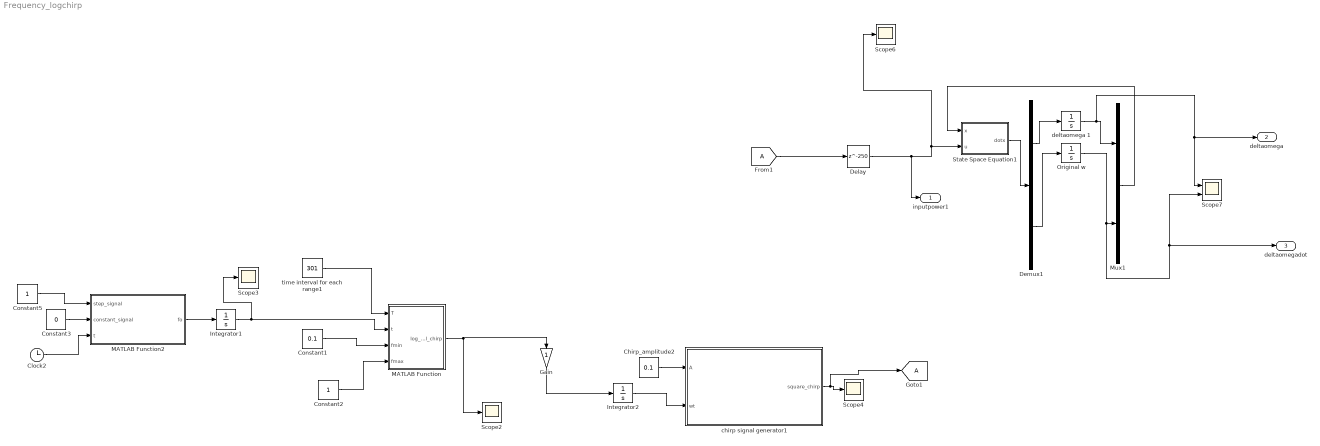
== matlab function Frequency_logchirp/MATLAB Function ==
function log_signal_chirp = fcn(T,t, fmin, fmax)
k = floor(t/T);
f0 = fmin;
f1 = fmax;
lambda1 = 1/T * log10(f1 / f0);

log_signal_chirp = f0*(10^(lambda1*(t-k*T)));

== matlab function Frequency_logchirp/State Space Equation1 ==
function dotx  = fcn(x, u)
D = 1.5/100;
M = 3.0;
    Tg = 0.2;
    Rp = 0.05;
    Ki=2;
    dotx = zeros(2, 1);
    %x1 = x(1);
    x1 = x(1);
    x2=x(2);
    dotx = [x2;-(D/(M*Tg)+1/(Rp*M*Tg))*x1-(D/M+1/Tg)*x2-1/(M*Tg)*u];

== matlab function Frequency_logchirp/MATLAB Function2 ==
function fo   = signal_generator(step_signal,constant_signal,t)

if t <= 0
    fo = constant_signal;
else
    fo = step_signal;
end

== matlab function Frequency_logchirp/chirp signal 
generator1 ==
function square_chirp  = chirp_signal(A,wt)
%quadratic chirp signal


% %square chirp signal generator
% f1=w/(2*pi);
% T = 1/f1;
% k2 = floor(t/T);
% 
% if t > (k2*T) && t< (k2+D)*T
%      square_chirp=1;
% else
%     square_chirp=0;
% end


square_chirp = A*sign(cos(wt));

/*
 * Frequency_logchirp.c
 *
 * Academic License - for use in teaching, academic research, and meeting
 * course requirements at degree granting institutions only.  Not for
 * government, commercial, or other organizational use.
 *
 * Code generation for model "Frequency_logchirp".
 *
 * Model version              : 1.28
 * Simulink Coder version : 9.6 (R2021b) 14-May-2021
 * C source code generated on : Mon Jul 31 12:14:00 2023
 *
 * Target selection: grt.tlc
 * Note: GRT includes extra infrastructure and instrumentation for prototyping
 * Embedded hardware selection: Intel->x86-64 (Windows64)
 * Code generation objectives: Unspecified
 * Validation result: Not run
 */

#include "Frequency_logchirp.h"
#include "Frequency_logchirp_private.h"

/* Block signals (default storage) */
B_Frequency_logchirp_T Frequency_logchirp_B;

/* Continuous states */
X_Frequency_logchirp_T Frequency_logchirp_X;

/* Block states (default storage) */
DW_Frequency_logchirp_T Frequency_logchirp_DW;

/* External outputs (root outports fed by signals with default storage) */
ExtY_Frequency_logchirp_T Frequency_logchirp_Y;

/* Periodic continuous states */
PeriodicIndX_Frequency_logchirp_T Frequency_logchirp_PeriodicIndX;
PeriodicRngX_Frequency_logchirp_T Frequency_logchirp_PeriodicRngX;

/* Real-time model */
static RT_MODEL_Frequency_logchirp_T Frequency_logchirp_M_;
RT_MODEL_Frequency_logchirp_T *const Frequency_logchirp_M =
  &Frequency_logchirp_M_;

/* State reduction function */
void local_stateReduction(real_T* x, int_T* p, int_T n, real_T* r)
{
  int_T i, j;
  for (i = 0, j = 0; i < n; ++i, ++j) {
    int_T k = p[i];
    real_T lb = r[j++];
    real_T xk = x[k]-lb;
    real_T rk = r[j]-lb;
    int_T q = (int_T) floor(xk/rk);
    if (q) {
      x[k] = xk-q*rk+lb;
    }
  }
}

/*
 * This function updates continuous states using the ODE4 fixed-step
 * solver algorithm
 */
static void rt_ertODEUpdateContinuousStates(RTWSolverInfo *si )
{
  time_T t = rtsiGetT(si);
  time_T tnew = rtsiGetSolverStopTime(si);
  time_T h = rtsiGetStepSize(si);
  real_T *x = rtsiGetContStates(si);
  ODE4_IntgData *id = (ODE4_IntgData *)rtsiGetSolverData(si);
  real_T *y = id->y;
  real_T *f0 = id->f[0];
  real_T *f1 = id->f[1];
  real_T *f2 = id->f[2];
  real_T *f3 = id->f[3];
  real_T temp;
  int_T i;
  int_T nXc = 4;
  rtsiSetSimTimeStep(si,MINOR_TIME_STEP);

  /* Save the state values at time t in y, we'll use x as ynew. */
  (void) memcpy(y, x,
                (uint_T)nXc*sizeof(real_T));

  /* Assumes that rtsiSetT and ModelOutputs are up-to-date */
  /* f0 = f(t,y) */
  rtsiSetdX(si, f0);
  Frequency_logchirp_derivatives();

  /* f1 = f(t + (h/2), y + (h/2)*f0) */
  temp = 0.5 * h;
  for (i = 0; i < nXc; i++) {
    x[i] = y[i] + (temp*f0[i]);
  }

  rtsiSetT(si, t + temp);
  rtsiSetdX(si, f1);
  Frequency_logchirp_output();
  Frequency_logchirp_derivatives();

  /* f2 = f(t + (h/2), y + (h/2)*f1) */
  for (i = 0; i < nXc; i++) {
    x[i] = y[i] + (temp*f1[i]);
  }

  rtsiSetdX(si, f2);
  Frequency_logchirp_output();
  Frequency_logchirp_derivatives();

  /* f3 = f(t + h, y + h*f2) */
  for (i = 0; i < nXc; i++) {
    x[i] = y[i] + (h*f2[i]);
  }

  rtsiSetT(si, tnew);
  rtsiSetdX(si, f3);
  Frequency_logchirp_output();
  Frequency_logchirp_derivatives();

  /* tnew = t + h
     ynew = y + (h/6)*(f0 + 2*f1 + 2*f2 + 2*f3) */
  temp = h / 6.0;
  for (i = 0; i < nXc; i++) {
    x[i] = y[i] + temp*(f0[i] + 2.0*f1[i] + 2.0*f2[i] + f3[i]);
  }

  local_stateReduction(rtsiGetContStates(si), rtsiGetPeriodicContStateIndices(si),
                       1,
                       rtsiGetPeriodicContStateRanges(si));
  rtsiSetSimTimeStep(si,MAJOR_TIME_STEP);
}

real_T rt_powd_snf(real_T u0, real_T u1)
{
  real_T y;
  if (rtIsNaN(u0) || rtIsNaN(u1)) {
    y = (rtNaN);
  } else {
    real_T tmp;
    real_T tmp_0;
    tmp = fabs(u0);
    tmp_0 = fabs(u1);
    if (rtIsInf(u1)) {
      if (tmp == 1.0) {
        y = 1.0;
      } else if (tmp > 1.0) {
        if (u1 > 0.0) {
          y = (rtInf);
        } else {
          y = 0.0;
        }
      } else if (u1 > 0.0) {
        y = 0.0;
      } else {
        y = (rtInf);
      }
    } else if (tmp_0 == 0.0) {
      y = 1.0;
    } else if (tmp_0 == 1.0) {
      if (u1 > 0.0) {
        y = u0;
      } else {
        y = 1.0 / u0;
      }
    } else if (u1 == 2.0) {
      y = u0 * u0;
    } else if ((u1 == 0.5) && (u0 >= 0.0)) {
      y = sqrt(u0);
    } else if ((u0 < 0.0) && (u1 > floor(u1))) {
      y = (rtNaN);
    } else {
      y = pow(u0, u1);
    }
  }

  return y;
}

/* Model output function */
void Frequency_logchirp_output(void)
{
  real_T u;
  if (rtmIsMajorTimeStep(Frequency_logchirp_M)) {
    /* set solver stop time */
    if (!(Frequency_logchirp_M->Timing.clockTick0+1)) {
      rtsiSetSolverStopTime(&Frequency_logchirp_M->solverInfo,
                            ((Frequency_logchirp_M->Timing.clockTickH0 + 1) *
        Frequency_logchirp_M->Timing.stepSize0 * 4294967296.0));
    } else {
      rtsiSetSolverStopTime(&Frequency_logchirp_M->solverInfo,
                            ((Frequency_logchirp_M->Timing.clockTick0 + 1) *
        Frequency_logchirp_M->Timing.stepSize0 +
        Frequency_logchirp_M->Timing.clockTickH0 *
        Frequency_logchirp_M->Timing.stepSize0 * 4294967296.0));
    }
  }                                    /* end MajorTimeStep */

  /* Update absolute time of base rate at minor time step */
  if (rtmIsMinorTimeStep(Frequency_logchirp_M)) {
    Frequency_logchirp_M->Timing.t[0] = rtsiGetT
      (&Frequency_logchirp_M->solverInfo);
  }

  /* Integrator: '<Root>/deltaomega 1' */
  Frequency_logchirp_B.deltaomega1 = Frequency_logchirp_X.deltaomega1_CSTATE;

  /* Outport: '<Root>/deltaomega' */
  Frequency_logchirp_Y.deltaomega = Frequency_logchirp_B.deltaomega1;

  /* Integrator: '<Root>/Original w' */
  Frequency_logchirp_B.Originalw = Frequency_logchirp_X.Originalw_CSTATE;

  /* Outport: '<Root>/deltaomegadot' */
  Frequency_logchirp_Y.deltaomegadot = Frequency_logchirp_B.Originalw;

  /* Integrator: '<Root>/Integrator1' */
  Frequency_logchirp_B.Integrator1 = Frequency_logchirp_X.Integrator1_CSTATE;

  /* MATLAB Function: '<Root>/MATLAB Function' incorporates:
   *  Constant: '<Root>/Constant1'
   *  Constant: '<Root>/Constant2'
   *  Constant: '<Root>/time interval for  each range1'
   */
  Frequency_logchirp_B.log_signal_chirp = rt_powd_snf(10.0,
    (Frequency_logchirp_B.Integrator1 - floor(Frequency_logchirp_B.Integrator1 /
    Frequency_logchirp_P.timeintervalforeachrange1_Value) *
     Frequency_logchirp_P.timeintervalforeachrange1_Value) * (1.0 /
    Frequency_logchirp_P.timeintervalforeachrange1_Value * log10
    (Frequency_logchirp_P.Constant2_Value / Frequency_logchirp_P.Constant1_Value)))
    * Frequency_logchirp_P.Constant1_Value;
  if (rtmIsMajorTimeStep(Frequency_logchirp_M)) {
    /* Outport: '<Root>/inputpower1' incorporates:
     *  Delay: '<Root>/Delay'
     */
    Frequency_logchirp_Y.inputpower1 = Frequency_logchirp_DW.Delay_DSTATE[0];
  }

  /* MATLAB Function: '<Root>/chirp signal  generator1' incorporates:
   *  Constant: '<Root>/Chirp_amplitude2'
   *  Integrator: '<Root>/Integrator2'
   */
  u = cos(Frequency_logchirp_X.Integrator2_CSTATE);
  if (u < 0.0) {
    u = -1.0;
  } else if (u > 0.0) {
    u = 1.0;
  } else if (u == 0.0) {
    u = 0.0;
  } else {
    u = (rtNaN);
  }

  Frequency_logchirp_B.square_chirp =
    Frequency_logchirp_P.Chirp_amplitude2_Value * u;

  /* End of MATLAB Function: '<Root>/chirp signal  generator1' */
  if (rtmIsMajorTimeStep(Frequency_logchirp_M)) {
  }

  /* Gain: '<Root>/Gain' */
  Frequency_logchirp_B.Gain = Frequency_logchirp_P.Gain_Gain *
    Frequency_logchirp_B.log_signal_chirp;

  /* MATLAB Function: '<Root>/MATLAB Function2' incorporates:
   *  Clock: '<Root>/Clock2'
   *  Constant: '<Root>/Constant3'
   *  Constant: '<Root>/Constant5'
   */
  if (Frequency_logchirp_M->Timing.t[0] <= 0.0) {
    Frequency_logchirp_B.fo = Frequency_logchirp_P.Constant3_Value;
  } else {
    Frequency_logchirp_B.fo = Frequency_logchirp_P.Constant5_Value;
  }

  /* End of MATLAB Function: '<Root>/MATLAB Function2' */

  /* MATLAB Function: '<Root>/State Space Equation1' incorporates:
   *  Outport: '<Root>/inputpower1'
   *  SignalConversion generated from: '<S3>/ SFunction '
   */
  Frequency_logchirp_B.dotx[0] = Frequency_logchirp_B.Originalw;
  Frequency_logchirp_B.dotx[1] = (-33.358333333333327 *
    Frequency_logchirp_B.deltaomega1 - 5.005 * Frequency_logchirp_B.Originalw) -
    1.6666666666666665 * Frequency_logchirp_Y.inputpower1;
}

/* Model update function */
void Frequency_logchirp_update(void)
{
  int_T idxDelay;
  if (rtmIsMajorTimeStep(Frequency_logchirp_M)) {
    /* Update for Delay: '<Root>/Delay' */
    for (idxDelay = 0; idxDelay < 249; idxDelay++) {
      Frequency_logchirp_DW.Delay_DSTATE[idxDelay] =
        Frequency_logchirp_DW.Delay_DSTATE[idxDelay + 1];
    }

    Frequency_logchirp_DW.Delay_DSTATE[249] = Frequency_logchirp_B.square_chirp;

    /* End of Update for Delay: '<Root>/Delay' */
  }

  /* signal main to stop simulation */
  {                                    /* Sample time: [0.0s, 0.0s] */
    if ((rtmGetTFinal(Frequency_logchirp_M)!=-1) &&
        !((rtmGetTFinal(Frequency_logchirp_M)-
           (((Frequency_logchirp_M->Timing.clockTick1+
              Frequency_logchirp_M->Timing.clockTickH1* 4294967296.0)) * 0.02)) >
          (((Frequency_logchirp_M->Timing.clockTick1+
             Frequency_logchirp_M->Timing.clockTickH1* 4294967296.0)) * 0.02) *
          (DBL_EPSILON))) {
      rtmSetErrorStatus(Frequency_logchirp_M, "Simulation finished");
    }
  }

  if (rtmIsMajorTimeStep(Frequency_logchirp_M)) {
    rt_ertODEUpdateContinuousStates(&Frequency_logchirp_M->solverInfo);
  }

  /* Update absolute time for base rate */
  /* The "clockTick0" counts the number of times the code of this task has
   * been executed. The absolute time is the multiplication of "clockTick0"
   * and "Timing.stepSize0". Size of "clockTick0" ensures timer will not
   * overflow during the application lifespan selected.
   * Timer of this task consists of two 32 bit unsigned integers.
   * The two integers represent the low bits Timing.clockTick0 and the high bits
   * Timing.clockTickH0. When the low bit overflows to 0, the high bits increment.
   */
  if (!(++Frequency_logchirp_M->Timing.clockTick0)) {
    ++Frequency_logchirp_M->Timing.clockTickH0;
  }

  Frequency_logchirp_M->Timing.t[0] = rtsiGetSolverStopTime
    (&Frequency_logchirp_M->solverInfo);

  {
    /* Update absolute timer for sample time: [0.02s, 0.0s] */
    /* The "clockTick1" counts the number of times the code of this task has
     * been executed. The resolution of this integer timer is 0.02, which is the step size
     * of the task. Size of "clockTick1" ensures timer will not overflow during the
     * application lifespan selected.
     * Timer of this task consists of two 32 bit unsigned integers.
     * The two integers represent the low bits Timing.clockTick1 and the high bits
     * Timing.clockTickH1. When the low bit overflows to 0, the high bits increment.
     */
    Frequency_logchirp_M->Timing.clockTick1++;
    if (!Frequency_logchirp_M->Timing.clockTick1) {
      Frequency_logchirp_M->Timing.clockTickH1++;
    }
  }
}
